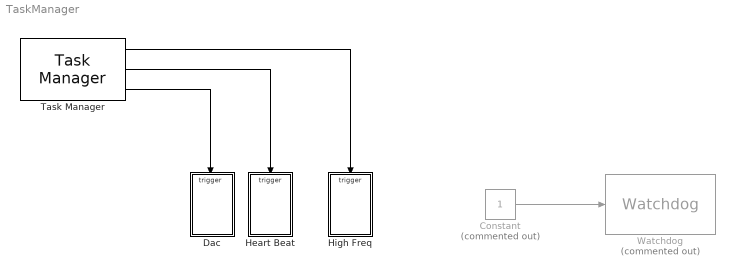
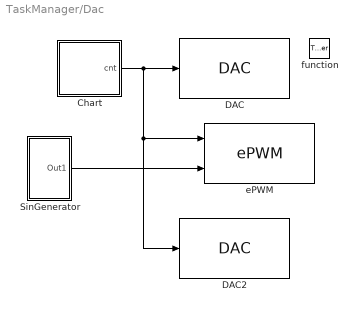
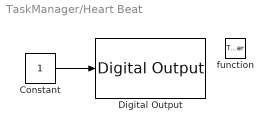
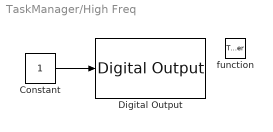
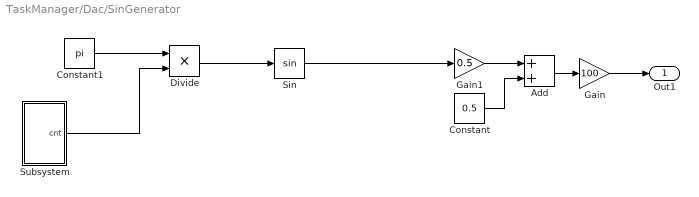
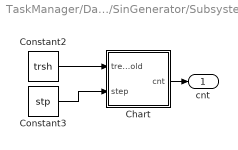
== stateflow chart TaskManager/Dac/SinGenerator/Subsystem/Chart ==
  state RESET
    cnt =0;
  state IDLE
    cnt = cnt + step;
  (default) -> RESET
  RESET -> IDLE : [cnt ==0]
  IDLE -> RESET : [cnt>=treshold]
  data: treshold input; step input; cnt output

== stateflow chart TaskManager/Dac/Chart ==
  state RESET
    cnt =0;
  state IDLE
    cnt = cnt + 1;
  (default) -> RESET
  RESET -> IDLE : [cnt ==0]
  IDLE -> RESET : [cnt==100]
  data: cnt output =0

/*
 * File: TaskManager.c
 *
 * Code generated for Simulink model 'TaskManager'.
 *
 * Model version                  : 1.4
 * Simulink Coder version         : 23.2 (R2023b) 01-Aug-2023
 * C/C++ source code generated on : Sun May 19 08:18:15 2024
 *
 * Target selection: ert.tlc
 * Embedded hardware selection: Texas Instruments->C2000
 * Code generation objectives: Unspecified
 * Validation result: Not run
 */

#include "TaskManager.h"
#include "rtwtypes.h"
#include <math.h>
#include "TaskManager_private.h"
#include <string.h>
#define TaskManager_IN_IDLE            (1U)
#define TaskManager_IN_NO_ACTIVE_CHILD (0U)
#define TaskManager_IN_RESET           (2U)

/* Block signals (default storage) */
B_TaskManager_T TaskManager_B;

/* Block states (default storage) */
DW_TaskManager_T TaskManager_DW;

/* Real-time model */
static RT_MODEL_TaskManager_T TaskManager_M_;
RT_MODEL_TaskManager_T *const TaskManager_M = &TaskManager_M_;
static void rate_monotonic_scheduler(void);

/*
 * Set which subrates need to run this base step (base rate always runs).
 * This function must be called prior to calling the model step function
 * in order to remember which rates need to run this base step.  The
 * buffering of events allows for overlapping preemption.
 */
void TaskManager_SetEventsForThisBaseStep(boolean_T *eventFlags)
{
  /* Task runs when its counter is zero, computed via rtmStepTask macro */
  eventFlags[1] = ((boolean_T)rtmStepTask(TaskManager_M, 1));
  eventFlags[2] = ((boolean_T)rtmStepTask(TaskManager_M, 2));
}

/*
 *         This function updates active task flag for each subrate
 *         and rate transition flags for tasks that exchange data.
 *         The function assumes rate-monotonic multitasking scheduler.
 *         The function must be called at model base rate so that
 *         the generated code self-manages all its subrates and rate
 *         transition flags.
 */
static void rate_monotonic_scheduler(void)
{
  /* Compute which subrates run during the next base time step.  Subrates
   * are an integer multiple of the base rate counter.  Therefore, the subtask
   * counter is reset when it reaches its limit (zero means run).
   */
  (TaskManager_M->Timing.TaskCounters.TID[1])++;
  if ((TaskManager_M->Timing.TaskCounters.TID[1]) > 99) {/* Sample time: [0.001s, 0.0s] */
    TaskManager_M->Timing.TaskCounters.TID[1] = 0;
  }

  (TaskManager_M->Timing.TaskCounters.TID[2])++;
  if ((TaskManager_M->Timing.TaskCounters.TID[2]) > 199999) {/* Sample time: [2.0s, 0.0s] */
    TaskManager_M->Timing.TaskCounters.TID[2] = 0;
  }
}

/* Model step function for TID0 */
void TaskManager_step0(void)           /* Sample time: [1.0E-5s, 0.0s] */
{
  {                                    /* Sample time: [1.0E-5s, 0.0s] */
    rate_monotonic_scheduler();
  }

  /* S-Function (fcgen): '<S20>/FcnCallGen' incorporates:
   *  SubSystem: '<Root>/High Freq'
   */
  /* S-Function (c280xgpio_do): '<S3>/Digital Output' incorporates:
   *  Constant: '<S3>/Constant'
   */
  {
    GpioDataRegs.GPATOGGLE.bit.GPIO6 = (uint16_T)(TaskManager_P.Constant_Value_a
      != 0);
  }

  /* End of Outputs for S-Function (fcgen): '<S20>/FcnCallGen' */
}

/* Model step function for TID1 */
void TaskManager_step1(void)           /* Sample time: [0.001s, 0.0s] */
{
  real_T rtb_Gain;

  /* S-Function (fcgen): '<S21>/FcnCallGen' incorporates:
   *  SubSystem: '<Root>/Dac'
   */
  /* Chart: '<S1>/Chart' */
  if (TaskManager_DW.is_active_c3_TaskManager == 0U) {
    TaskManager_DW.is_active_c3_TaskManager = 1U;
    TaskManager_DW.is_c3_TaskManager = TaskManager_IN_RESET;
    TaskManager_B.cnt_b = 0.0;
  } else if (TaskManager_DW.is_c3_TaskManager == 1U) {
    if (TaskManager_B.cnt_b == 100.0) {
      TaskManager_DW.is_c3_TaskManager = TaskManager_IN_RESET;
      TaskManager_B.cnt_b = 0.0;
    } else {
      TaskManager_B.cnt_b++;
    }

    /* case IN_RESET: */
  } else if (TaskManager_B.cnt_b == 0.0) {
    TaskManager_DW.is_c3_TaskManager = TaskManager_IN_IDLE;
    TaskManager_B.cnt_b++;
  } else {
    TaskManager_B.cnt_b = 0.0;
  }

  /* End of Chart: '<S1>/Chart' */

  /* MATLABSystem: '<S1>/DAC' */
  MW_C2000DACSat(0U, TaskManager_B.cnt_b);

  /* MATLABSystem: '<S1>/DAC2' */
  MW_C2000DACSat(2U, TaskManager_B.cnt_b);

  /* Chart: '<S7>/Chart' incorporates:
   *  Constant: '<S7>/Constant2'
   *  Constant: '<S7>/Constant3'
   */
  if (TaskManager_DW.is_active_c1_TaskManager == 0U) {
    TaskManager_DW.is_active_c1_TaskManager = 1U;
    TaskManager_DW.is_c1_TaskManager = TaskManager_IN_RESET;
    TaskManager_B.cnt = 0.0;
  } else if (TaskManager_DW.is_c1_TaskManager == 1U) {
    if (TaskManager_B.cnt >= TaskManager_P.Subsystem_trsh) {
      TaskManager_DW.is_c1_TaskManager = TaskManager_IN_RESET;
      TaskManager_B.cnt = 0.0;
    } else {
      TaskManager_B.cnt += TaskManager_P.Subsystem_stp;
    }

    /* case IN_RESET: */
  } else if (TaskManager_B.cnt == 0.0) {
    TaskManager_DW.is_c1_TaskManager = TaskManager_IN_IDLE;
    TaskManager_B.cnt += TaskManager_P.Subsystem_stp;
  } else {
    TaskManager_B.cnt = 0.0;
  }

  /* End of Chart: '<S7>/Chart' */

  /* Gain: '<S6>/Gain' incorporates:
   *  Constant: '<S6>/Constant'
   *  Constant: '<S6>/Constant1'
   *  Gain: '<S6>/Gain1'
   *  Product: '<S6>/Divide'
   *  Sum: '<S6>/Add'
   *  Trigonometry: '<S6>/Sin'
   */
  rtb_Gain = ((real32_T)sin((real32_T)(TaskManager_P.Constant1_Value *
    TaskManager_B.cnt)) * TaskManager_P.Gain1_Gain +
              TaskManager_P.Constant_Value_p) * TaskManager_P.Gain_Gain;

  /* S-Function (c2802xpwm): '<S1>/ePWM' */

  /*-- Update CMPA value for ePWM1 --*/
  {
    EPwm1Regs.CMPA.bit.CMPA = (uint16_T)((uint32_T)EPwm1Regs.TBPRD *
      TaskManager_B.cnt_b * 0.01);
  }

  /*-- Update CMPB value for ePWM1 --*/
  {
    EPwm1Regs.CMPB.bit.CMPB = (uint16_T)((uint32_T)EPwm1Regs.TBPRD * rtb_Gain *
      0.01);
  }

  /* End of Outputs for S-Function (fcgen): '<S21>/FcnCallGen' */
}

/* Model step function for TID2 */
void TaskManager_step2(void)           /* Sample time: [2.0s, 0.0s] */
{
  /* S-Function (fcgen): '<S19>/FcnCallGen' incorporates:
   *  SubSystem: '<Root>/Heart Beat'
   */
  /* S-Function (c280xgpio_do): '<S2>/Digital Output' incorporates:
   *  Constant: '<S2>/Constant'
   */
  {
    GpioDataRegs.GPATOGGLE.bit.GPIO31 = (uint16_T)(TaskManager_P.Constant_Value
      != 0);
  }

  /* End of Outputs for S-Function (fcgen): '<S19>/FcnCallGen' */
}
